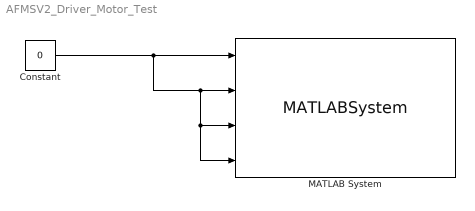
/*
 * AFMSV2_Driver_Motor_Test.c
 *
 * Academic License - for use in teaching, academic research, and meeting
 * course requirements at degree granting institutions only.  Not for
 * government, commercial, or other organizational use.
 *
 * Code generation for model "AFMSV2_Driver_Motor_Test".
 *
 * Model version              : 1.3
 * Simulink Coder version : 9.6 (R2021b) 14-May-2021
 * C source code generated on : Tue Sep 13 14:44:14 2022
 *
 * Target selection: ert.tlc
 * Embedded hardware selection: ARM Compatible->ARM Cortex
 * Code generation objectives: Unspecified
 * Validation result: Not run
 */

#include "AFMSV2_Driver_Motor_Test.h"
#include "AFMSV2_Driver_Motor_Test_private.h"

/* Block states (default storage) */
DW_AFMSV2_Driver_Motor_Test_T AFMSV2_Driver_Motor_Test_DW;

/* Real-time model */
static RT_MODEL_AFMSV2_Driver_Motor__T AFMSV2_Driver_Motor_Test_M_;
RT_MODEL_AFMSV2_Driver_Motor__T *const AFMSV2_Driver_Motor_Test_M =
  &AFMSV2_Driver_Motor_Test_M_;

/* Model step function */
void AFMSV2_Driver_Motor_Test_step(void)
{
  real_T sampleTime;

  /* MATLABSystem: '<Root>/MATLAB System' incorporates:
   *  Constant: '<Root>/Constant'
   */
  if (AFMSV2_Driver_Motor_Test_DW.obj.SampleTime !=
      AFMSV2_Driver_Motor_Test_P.MATLABSystem_SampleTime) {
    if (((!rtIsInf(AFMSV2_Driver_Motor_Test_P.MATLABSystem_SampleTime)) &&
         (!rtIsNaN(AFMSV2_Driver_Motor_Test_P.MATLABSystem_SampleTime))) ||
        rtIsInf(AFMSV2_Driver_Motor_Test_P.MATLABSystem_SampleTime)) {
      sampleTime = AFMSV2_Driver_Motor_Test_P.MATLABSystem_SampleTime;
    }

    AFMSV2_Driver_Motor_Test_DW.obj.SampleTime = sampleTime;
  }

  /*         %% Define output properties */
  /* 'AFMSV2Driver:71' num = 4; */
  /* 'AFMSV2Driver:75' num = 0; */
  /* 'AFMSV2Driver:50' if isempty(coder.target) */
  /* 'AFMSV2Driver:52' else */
  /*  Call C-function implementing device output */
  /* 'AFMSV2Driver:54' coder.ceval('AFMSV2Driver_Step', U1, U2, U3, U4); */
  AFMSV2Driver_Step(AFMSV2_Driver_Motor_Test_P.Constant_Value,
                    AFMSV2_Driver_Motor_Test_P.Constant_Value,
                    AFMSV2_Driver_Motor_Test_P.Constant_Value,
                    AFMSV2_Driver_Motor_Test_P.Constant_Value);

  /* End of MATLABSystem: '<Root>/MATLAB System' */
}
